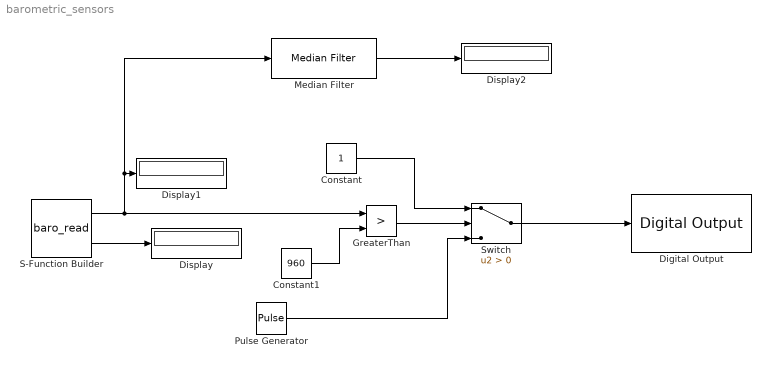
/*
 * Academic License - for use in teaching, academic research, and meeting
 * course requirements at degree granting institutions only.  Not for
 * government, commercial, or other organizational use.
 *
 * File: barometric_sensors.c
 *
 * Code generated for Simulink model 'barometric_sensors'.
 *
 * Model version                  : 1.2
 * Simulink Coder version         : 9.7 (R2022a) 13-Nov-2021
 * C/C++ source code generated on : Thu May  5 11:49:54 2022
 *
 * Target selection: ert.tlc
 * Embedded hardware selection: Atmel->AVR
 * Code generation objectives: Unspecified
 * Validation result: Not run
 */

#include "barometric_sensors.h"
#include "barometric_sensors_types.h"
#include "rtwtypes.h"
#include "barometric_sensors_private.h"
#include <math.h>
#include <string.h>

/* Block signals (default storage) */
B_barometric_sensors_T barometric_sensors_B;

/* Block states (default storage) */
DW_barometric_sensors_T barometric_sensors_DW;

/* Real-time model */
static RT_MODEL_barometric_sensors_T barometric_sensors_M_;
RT_MODEL_barometric_sensors_T *const barometric_sensors_M =
  &barometric_sensors_M_;

/* Forward declaration for local functions */
static void barome_MedianFilterCG_resetImpl(c_dsp_internal_MedianFilterCG_T *obj);
static void b_MedianFilterCG_trickleDownMax(c_dsp_internal_MedianFilterCG_T *obj,
  real_T i);
static void b_MedianFilterCG_trickleDownMin(c_dsp_internal_MedianFilterCG_T *obj,
  real_T i);
real_T rt_roundd_snf(real_T u)
{
  real_T y;
  if (fabs(u) < 4.503599627370496E+15) {
    if (u >= 0.5) {
      y = floor(u + 0.5);
    } else if (u > -0.5) {
      y = u * 0.0;
    } else {
      y = ceil(u - 0.5);
    }
  } else {
    y = u;
  }

  return y;
}

static void barome_MedianFilterCG_resetImpl(c_dsp_internal_MedianFilterCG_T *obj)
{
  real_T cnt1;
  real_T cnt2;
  int16_T i;
  memset(&obj->pBuf[0], 0, 12U * sizeof(real_T));
  memset(&obj->pPos[0], 0, 12U * sizeof(real_T));
  memset(&obj->pHeap[0], 0, 12U * sizeof(real_T));
  obj->pWinLen = 12.0;
  obj->pIdx = obj->pWinLen;
  obj->pMidHeap = ceil((obj->pWinLen + 1.0) / 2.0);
  cnt1 = (obj->pWinLen - 1.0) / 2.0;
  if (cnt1 < 0.0) {
    obj->pMinHeapLength = ceil(cnt1);
  } else {
    obj->pMinHeapLength = floor(cnt1);
  }

  cnt1 = obj->pWinLen / 2.0;
  if (cnt1 < 0.0) {
    obj->pMaxHeapLength = ceil(cnt1);
  } else {
    obj->pMaxHeapLength = floor(cnt1);
  }

  cnt1 = 1.0;
  cnt2 = obj->pWinLen;
  for (i = 0; i < 12; i++) {
    if ((int16_T)fmod(-(real_T)i + 12.0, 2.0) == 0) {
      obj->pPos[11 - i] = cnt1;
      cnt1++;
    } else {
      obj->pPos[11 - i] = cnt2;
      cnt2--;
    }

    obj->pHeap[(int16_T)obj->pPos[11 - i] - 1] = -(real_T)i + 12.0;
  }
}

static void b_MedianFilterCG_trickleDownMax(c_dsp_internal_MedianFilterCG_T *obj,
  real_T i)
{
  real_T ind2;
  real_T tmp;
  real_T u;
  real_T u_tmp;
  boolean_T exitg1;
  exitg1 = false;
  while ((!exitg1) && (i >= -obj->pMaxHeapLength)) {
    if ((i < -1.0) && (i > -obj->pMaxHeapLength) && (obj->pBuf[(int16_T)
         obj->pHeap[(int16_T)(i + obj->pMidHeap) - 1] - 1] < obj->pBuf[(int16_T)
         obj->pHeap[(int16_T)((i - 1.0) + obj->pMidHeap) - 1] - 1])) {
      i--;
    }

    u_tmp = i / 2.0;
    if (u_tmp < 0.0) {
      u = ceil(u_tmp);
    } else {
      u = floor(u_tmp);
    }

    ind2 = i + obj->pMidHeap;
    tmp = obj->pHeap[(int16_T)ind2 - 1];
    if (!(obj->pBuf[(int16_T)obj->pHeap[(int16_T)(u + obj->pMidHeap) - 1] - 1] <
          obj->pBuf[(int16_T)tmp - 1])) {
      exitg1 = true;
    } else {
      if (u_tmp < 0.0) {
        u = ceil(u_tmp);
      } else {
        u = floor(u_tmp);
      }

      u_tmp = u + obj->pMidHeap;
      u = obj->pHeap[(int16_T)u_tmp - 1];
      obj->pHeap[(int16_T)u_tmp - 1] = tmp;
      obj->pHeap[(int16_T)ind2 - 1] = u;
      obj->pPos[(int16_T)obj->pHeap[(int16_T)u_tmp - 1] - 1] = u_tmp;
      obj->pPos[(int16_T)obj->pHeap[(int16_T)ind2 - 1] - 1] = ind2;
      i *= 2.0;
    }
  }
}

static void b_MedianFilterCG_trickleDownMin(c_dsp_internal_MedianFilterCG_T *obj,
  real_T i)
{
  real_T ind1;
  real_T temp;
  real_T tmp;
  real_T u_tmp;
  boolean_T exitg1;
  exitg1 = false;
  while ((!exitg1) && (i <= obj->pMinHeapLength)) {
    if ((i > 1.0) && (i < obj->pMinHeapLength) && (obj->pBuf[(int16_T)obj->
         pHeap[(int16_T)((i + 1.0) + obj->pMidHeap) - 1] - 1] < obj->pBuf
         [(int16_T)obj->pHeap[(int16_T)(i + obj->pMidHeap) - 1] - 1])) {
      i++;
    }

    u_tmp = i / 2.0;
    if (u_tmp < 0.0) {
      temp = ceil(u_tmp);
    } else {
      temp = floor(u_tmp);
    }

    ind1 = i + obj->pMidHeap;
    tmp = obj->pHeap[(int16_T)ind1 - 1];
    if (!(obj->pBuf[(int16_T)tmp - 1] < obj->pBuf[(int16_T)obj->pHeap[(int16_T)
          (temp + obj->pMidHeap) - 1] - 1])) {
      exitg1 = true;
    } else {
      if (u_tmp < 0.0) {
        temp = ceil(u_tmp);
      } else {
        temp = floor(u_tmp);
      }

      u_tmp = temp + obj->pMidHeap;
      obj->pHeap[(int16_T)ind1 - 1] = obj->pHeap[(int16_T)u_tmp - 1];
      obj->pHeap[(int16_T)u_tmp - 1] = tmp;
      obj->pPos[(int16_T)obj->pHeap[(int16_T)ind1 - 1] - 1] = ind1;
      obj->pPos[(int16_T)obj->pHeap[(int16_T)u_tmp - 1] - 1] = u_tmp;
      i *= 2.0;
    }
  }
}

/* Model step function */
void barometric_sensors_step(void)
{
  c_dsp_internal_MedianFilterCG_T *obj;
  real_T rtb_PulseGenerator;
  real_T u;
  uint8_T tmp;
  boolean_T exitg1;
  boolean_T flag;

  /* S-Function (baro_read): '<Root>/S-Function Builder' */
  baro_read_Outputs_wrapper(&barometric_sensors_B.SFunctionBuilder_o1,
    &barometric_sensors_B.SFunctionBuilder_o2,
    &barometric_sensors_DW.SFunctionBuilder_DSTATE);

  /* DiscretePulseGenerator: '<Root>/Pulse Generator' */
  rtb_PulseGenerator = (barometric_sensors_DW.clockTickCounter <
                        barometric_sensors_P.PulseGenerator_Duty) &&
    (barometric_sensors_DW.clockTickCounter >= 0L) ?
    barometric_sensors_P.PulseGenerator_Amp : 0.0;
  if (barometric_sensors_DW.clockTickCounter >=
      barometric_sensors_P.PulseGenerator_Period - 1.0) {
    barometric_sensors_DW.clockTickCounter = 0L;
  } else {
    barometric_sensors_DW.clockTickCounter++;
  }

  /* End of DiscretePulseGenerator: '<Root>/Pulse Generator' */

  /* Switch: '<Root>/Switch' incorporates:
   *  Constant: '<Root>/Constant'
   *  Constant: '<Root>/Constant1'
   *  RelationalOperator: '<Root>/GreaterThan'
   */
  if (barometric_sensors_B.SFunctionBuilder_o1 >
      barometric_sensors_P.Constant1_Value) {
    rtb_PulseGenerator = barometric_sensors_P.Constant_Value;
  }

  /* End of Switch: '<Root>/Switch' */

  /* MATLABSystem: '<Root>/Digital Output' */
  rtb_PulseGenerator = rt_roundd_snf(rtb_PulseGenerator);
  if (rtb_PulseGenerator < 256.0) {
    if (rtb_PulseGenerator >= 0.0) {
      tmp = (uint8_T)rtb_PulseGenerator;
    } else {
      tmp = 0U;
    }
  } else {
    tmp = MAX_uint8_T;
  }

  writeDigitalPin(13, tmp);

  /* End of MATLABSystem: '<Root>/Digital Output' */

  /* MATLABSystem: '<Root>/Median Filter' */
  obj = &barometric_sensors_DW.obj.pMID;
  if (barometric_sensors_DW.obj.pMID.isInitialized != 1L) {
    barometric_sensors_DW.obj.pMID.isSetupComplete = false;
    barometric_sensors_DW.obj.pMID.isInitialized = 1L;
    barometric_sensors_DW.obj.pMID.isSetupComplete = true;
    barome_MedianFilterCG_resetImpl(&barometric_sensors_DW.obj.pMID);
  }

  rtb_PulseGenerator = barometric_sensors_DW.obj.pMID.pBuf[(int16_T)
    barometric_sensors_DW.obj.pMID.pIdx - 1];
  barometric_sensors_DW.obj.pMID.pBuf[(int16_T)
    barometric_sensors_DW.obj.pMID.pIdx - 1] =
    barometric_sensors_B.SFunctionBuilder_o1;
  barometric_sensors_B.p = barometric_sensors_DW.obj.pMID.pPos[(int16_T)
    barometric_sensors_DW.obj.pMID.pIdx - 1];
  barometric_sensors_DW.obj.pMID.pIdx++;
  if (barometric_sensors_DW.obj.pMID.pWinLen + 1.0 ==
      barometric_sensors_DW.obj.pMID.pIdx) {
    barometric_sensors_DW.obj.pMID.pIdx = 1.0;
  }

  if (barometric_sensors_B.p > barometric_sensors_DW.obj.pMID.pMidHeap) {
    if (rtb_PulseGenerator < barometric_sensors_B.SFunctionBuilder_o1) {
      b_MedianFilterCG_trickleDownMin(&barometric_sensors_DW.obj.pMID,
        (barometric_sensors_B.p - barometric_sensors_DW.obj.pMID.pMidHeap) * 2.0);
    } else {
      rtb_PulseGenerator = barometric_sensors_B.p -
        barometric_sensors_DW.obj.pMID.pMidHeap;
      exitg1 = false;
      while ((!exitg1) && (rtb_PulseGenerator > 0.0)) {
        flag = (obj->pBuf[(int16_T)obj->pHeap[(int16_T)(rtb_PulseGenerator +
                 obj->pMidHeap) - 1] - 1] < obj->pBuf[(int16_T)obj->pHeap
                [(int16_T)(floor(rtb_PulseGenerator / 2.0) + obj->pMidHeap) - 1]
                - 1]);
        if (!flag) {
          exitg1 = true;
        } else {
          u = rtb_PulseGenerator + obj->pMidHeap;
          barometric_sensors_B.ind2 = floor(rtb_PulseGenerator / 2.0) +
            obj->pMidHeap;
          barometric_sensors_B.temp = obj->pHeap[(int16_T)u - 1];
          obj->pHeap[(int16_T)u - 1] = obj->pHeap[(int16_T)
            barometric_sensors_B.ind2 - 1];
          obj->pHeap[(int16_T)barometric_sensors_B.ind2 - 1] =
            barometric_sensors_B.temp;
          obj->pPos[(int16_T)obj->pHeap[(int16_T)u - 1] - 1] = u;
          obj->pPos[(int16_T)obj->pHeap[(int16_T)barometric_sensors_B.ind2 - 1]
            - 1] = barometric_sensors_B.ind2;
          rtb_PulseGenerator = floor(rtb_PulseGenerator / 2.0);
        }
      }

      if (rtb_PulseGenerator == 0.0) {
        b_MedianFilterCG_trickleDownMax(&barometric_sensors_DW.obj.pMID, -1.0);
      }
    }
  } else if (barometric_sensors_B.p < barometric_sensors_DW.obj.pMID.pMidHeap) {
    if (barometric_sensors_B.SFunctionBuilder_o1 < rtb_PulseGenerator) {
      b_MedianFilterCG_trickleDownMax(&barometric_sensors_DW.obj.pMID,
        (barometric_sensors_B.p - barometric_sensors_DW.obj.pMID.pMidHeap) * 2.0);
    } else {
      rtb_PulseGenerator = barometric_sensors_B.p -
        barometric_sensors_DW.obj.pMID.pMidHeap;
      exitg1 = false;
      while ((!exitg1) && (rtb_PulseGenerator < 0.0)) {
        barometric_sensors_B.p = rtb_PulseGenerator / 2.0;
        if (barometric_sensors_B.p < 0.0) {
          u = ceil(barometric_sensors_B.p);
        } else {
          u = -0.0;
        }

        flag = (obj->pBuf[(int16_T)obj->pHeap[(int16_T)(u + obj->pMidHeap) - 1]
                - 1] < obj->pBuf[(int16_T)obj->pHeap[(int16_T)
                (rtb_PulseGenerator + obj->pMidHeap) - 1] - 1]);
        if (!flag) {
          exitg1 = true;
        } else {
          if (barometric_sensors_B.p < 0.0) {
            u = ceil(barometric_sensors_B.p);
          } else {
            u = -0.0;
          }

          u += obj->pMidHeap;
          barometric_sensors_B.ind2 = rtb_PulseGenerator + obj->pMidHeap;
          barometric_sensors_B.temp = obj->pHeap[(int16_T)u - 1];
          obj->pHeap[(int16_T)u - 1] = obj->pHeap[(int16_T)
            barometric_sensors_B.ind2 - 1];
          obj->pHeap[(int16_T)barometric_sensors_B.ind2 - 1] =
            barometric_sensors_B.temp;
          obj->pPos[(int16_T)obj->pHeap[(int16_T)u - 1] - 1] = u;
          obj->pPos[(int16_T)obj->pHeap[(int16_T)barometric_sensors_B.ind2 - 1]
            - 1] = barometric_sensors_B.ind2;
          if (barometric_sensors_B.p < 0.0) {
            rtb_PulseGenerator = ceil(barometric_sensors_B.p);
          } else {
            rtb_PulseGenerator = -0.0;
          }
        }
      }

      if (rtb_PulseGenerator == 0.0) {
        b_MedianFilterCG_trickleDownMin(&barometric_sensors_DW.obj.pMID, 1.0);
      }
    }
  } else {
    if (barometric_sensors_DW.obj.pMID.pMaxHeapLength != 0.0) {
      b_MedianFilterCG_trickleDownMax(&barometric_sensors_DW.obj.pMID, -1.0);
    }

    if (barometric_sensors_DW.obj.pMID.pMinHeapLength > 0.0) {
      b_MedianFilterCG_trickleDownMin(&barometric_sensors_DW.obj.pMID, 1.0);
    }
  }

  rtb_PulseGenerator = barometric_sensors_DW.obj.pMID.pBuf[(int16_T)
    barometric_sensors_DW.obj.pMID.pHeap[(int16_T)
    barometric_sensors_DW.obj.pMID.pMidHeap - 1] - 1];

  /* MATLABSystem: '<Root>/Median Filter' */
  barometric_sensors_B.MedianFilter = (barometric_sensors_DW.obj.pMID.pBuf
    [(int16_T)barometric_sensors_DW.obj.pMID.pHeap[(int16_T)
    (barometric_sensors_DW.obj.pMID.pMidHeap - 1.0) - 1] - 1] +
    rtb_PulseGenerator) / 2.0;

  /* Update for S-Function (baro_read): '<Root>/S-Function Builder' */

  /* S-Function "baro_read_wrapper" Block: <Root>/S-Function Builder */
  baro_read_Update_wrapper(&barometric_sensors_B.SFunctionBuilder_o1,
    &barometric_sensors_B.SFunctionBuilder_o2,
    &barometric_sensors_DW.SFunctionBuilder_DSTATE);

  {                                    /* Sample time: [0.1s, 0.0s] */
  }

  /* Update absolute time for base rate */
  /* The "clockTick0" counts the number of times the code of this task has
   * been executed. The absolute time is the multiplication of "clockTick0"
   * and "Timing.stepSize0". Size of "clockTick0" ensures timer will not
   * overflow during the application lifespan selected.
   */
  barometric_sensors_M->Timing.taskTime0 =
    ((time_T)(++barometric_sensors_M->Timing.clockTick0)) *
    barometric_sensors_M->Timing.stepSize0;
}
